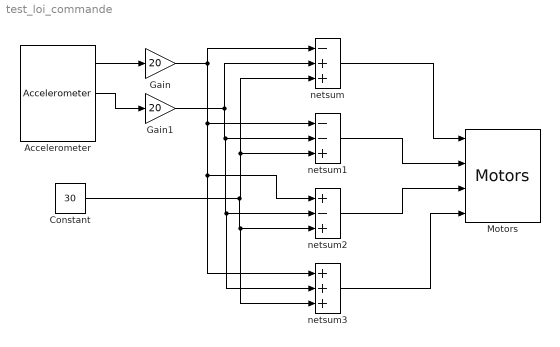
/*
 * File: test_loi_commande.cpp
 *
 * Code generated for Simulink model 'test_loi_commande'.
 *
 * Model version                  : 1.70
 * Simulink Coder version         : 8.4 (R2013a) 13-Feb-2013
 * TLC version                    : 8.4 (Jan 18 2013)
 * C/C++ source code generated on : Wed Jan 22 15:22:54 2014
 *
 * Target selection: ardrone.tlc
 * Embedded hardware selection: 32-bit Generic
 * Code generation objectives: Unspecified
 * Validation result: Not run
 */

#include "test_loi_commande.h"
#include "test_loi_commande_private.h"

/* Real-time model */
RT_MODEL_test_loi_commande_T test_loi_commande_M_;
RT_MODEL_test_loi_commande_T *const test_loi_commande_M = &test_loi_commande_M_;

/* Model step function */
void test_loi_commande_step(void)
{
  /* local block i/o variables */
  real32_T rtb_netsum;
  real32_T rtb_netsum1;
  real32_T rtb_netsum2;
  real32_T rtb_netsum3;
  real32_T rtb_ARDrone_Acc_Z;
  real32_T rtb_Gain;
  real32_T rtb_Gain1;

  /* Gain: '<Root>/Gain' incorporates:
   *  S-Function (ARDrone_Acc_X): '<S1>/ARDrone_Acc_X'
   */
  rtb_Gain = test_loi_commande_P.Gain_Gain * Accelero_Get_X();

  /* Gain: '<Root>/Gain1' incorporates:
   *  S-Function (ARDrone_Acc_Y): '<S1>/ARDrone_Acc_Y'
   */
  rtb_Gain1 = test_loi_commande_P.Gain1_Gain * Accelero_Get_Y();

  /* Sum: '<Root>/netsum' incorporates:
   *  Constant: '<Root>/Constant'
   */
  rtb_netsum = (rtb_Gain1 - rtb_Gain) + test_loi_commande_P.Constant_Value;

  /* S-Function (ARDrone_Motor): '<S2>/ARDrone_Motor' */
  Motor_Set( (real32_T)rtb_netsum, (uint8_T)test_loi_commande_P.ARDrone_Motor_p1);

  /* Sum: '<Root>/netsum1' incorporates:
   *  Constant: '<Root>/Constant'
   */
  rtb_netsum1 = (test_loi_commande_P.Constant_Value - rtb_Gain) - rtb_Gain1;

  /* S-Function (ARDrone_Motor): '<S2>/ARDrone_Motor1' */
  Motor_Set( (real32_T)rtb_netsum1, (uint8_T)
            test_loi_commande_P.ARDrone_Motor1_p1);

  /* Sum: '<Root>/netsum2' incorporates:
   *  Constant: '<Root>/Constant'
   */
  rtb_netsum2 = (rtb_Gain - rtb_Gain1) + test_loi_commande_P.Constant_Value;

  /* S-Function (ARDrone_Motor): '<S2>/ARDrone_Motor2' */
  Motor_Set( (real32_T)rtb_netsum2, (uint8_T)
            test_loi_commande_P.ARDrone_Motor2_p1);

  /* Sum: '<Root>/netsum3' incorporates:
   *  Constant: '<Root>/Constant'
   */
  rtb_netsum3 = (rtb_Gain + rtb_Gain1) + test_loi_commande_P.Constant_Value;

  /* S-Function (ARDrone_Motor): '<S2>/ARDrone_Motor3' */
  Motor_Set( (real32_T)rtb_netsum3, (uint8_T)
            test_loi_commande_P.ARDrone_Motor3_p1);

  /* S-Function (ARDrone_Acc_Z): '<S1>/ARDrone_Acc_Z' */
  rtb_ARDrone_Acc_Z = Accelero_Get_Z();
}
